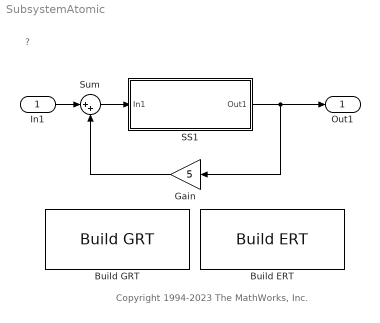
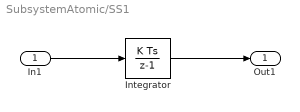
/*
 * File: SubsystemAtomic.c
 *
 * Code generated for Simulink model 'SubsystemAtomic'.
 *
 * Model version                  : 10.0
 * Simulink Coder version         : 24.1 (R2024a) 19-Nov-2023
 * C/C++ source code generated on : Tue Jun  9 01:22:39 2026
 *
 * Target selection: ert.tlc
 * Embedded hardware selection: Specified
 * Code generation objectives: Unspecified
 * Validation result: Not run
 */

#include "SubsystemAtomic.h"
#include "rtwtypes.h"

/* Block signals and states (default storage) */
DW rtDW;

/* External inputs (root inport signals with default storage) */
ExtU rtU;

/* External outputs (root outports fed by signals with default storage) */
ExtY rtY;

/* Real-time model */
static RT_MODEL rtM_;
RT_MODEL *const rtM = &rtM_;
static void myfun_Update(real_T rtu_In1, DW_myfun *localDW);
static real_T myfun(DW_myfun *localDW);

/* Outputs for atomic system: '<Root>/SS1' */
static real_T myfun(DW_myfun *localDW)
{
  /* DiscreteIntegrator: '<S1>/Integrator' */
  return localDW->Integrator_DSTATE;
}

/* Update for atomic system: '<Root>/SS1' */
static void myfun_Update(real_T rtu_In1, DW_myfun *localDW)
{
  /* Update for DiscreteIntegrator: '<S1>/Integrator' */
  localDW->Integrator_DSTATE += rtu_In1;
}

/* Model step function */
void SubsystemAtomic_step(void)
{
  /* Outputs for Atomic SubSystem: '<Root>/SS1' */

  /* Outport: '<Root>/Out1' */
  rtY.Out1 = myfun(&rtDW.SS1);

  /* End of Outputs for SubSystem: '<Root>/SS1' */

  /* Update for Atomic SubSystem: '<Root>/SS1' */

  /* Sum: '<Root>/Sum' incorporates:
   *  Gain: '<Root>/Gain'
   *  Inport: '<Root>/In1'
   *  Outport: '<Root>/Out1'
   */
  myfun_Update(rtU.In1 + 5.0 * rtY.Out1, &rtDW.SS1);

  /* End of Update for SubSystem: '<Root>/SS1' */
}
